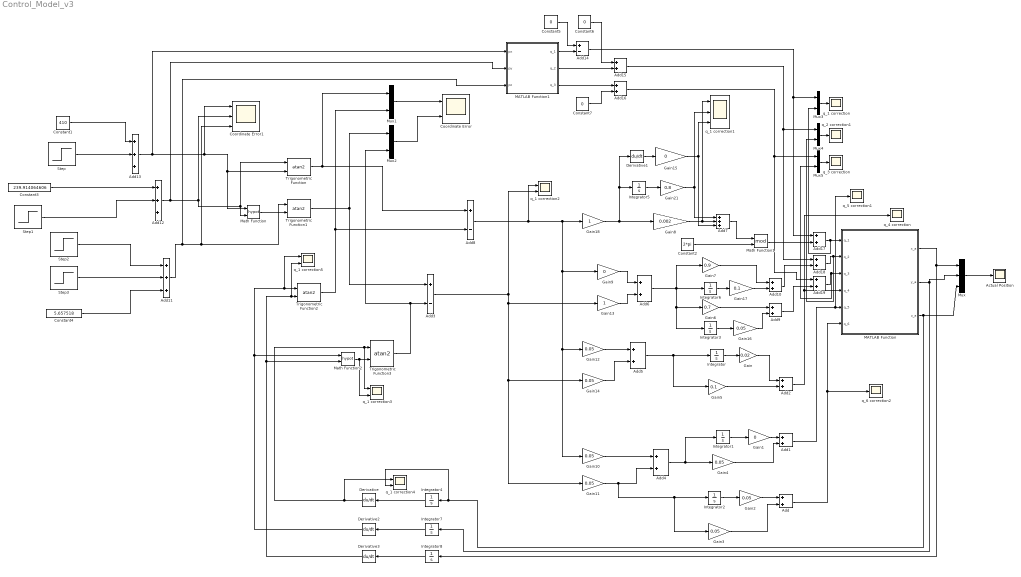
== matlab function Control_Model_v3/MATLAB Function1 ==
function [q_1, q_2, q_3] = fcn( px, py, pz)
%#codegen

D1 = 197.13;%275.5;
D2 = 410;
D3 = 207.3;
D4 = 74.1;
D5 = 74.1;
D6 = 160.0;
e2 = 9.8;
d1 = 197.13;
d2 = D2;
d3 = D3;

% q_3 +
%q_3__ = 1 * acos( (px^2 + (pz-d1)^2 - d2^2 - d3^2) / (2*d2*d3) );  

%cq_2 = (px*(d2+d3*cos(q_3__)) + d3*sin(q_3__)*(pz -d1)) / (d2^2 + d3^2 + 2*d2*d3*cos(q_3__));
%sq_2 = (-px*d3*sin(q_3__) + (d2+d3*cos(q_3__))*(pz -d1)) / (d2^2 + d3^2 + 2*d2*d3*cos(q_3__));
%q_2__ = (pi/2) - atan2(sq_2,cq_2);
%q_3__*180/pi
%q_2__*180/pi
% q_3 -

q_3 = 1 * acos( (px^2 + (pz-d1)^2 - d2^2 - d3^2) / (2*d2*d3) );  

cq_2 = (px*(d2+d3*cos(q_3)) + d3*sin(q_3)*(pz -d1)) / (d2^2 + d3^2 + 2*d2*d3*cos(q_3));
sq_2 = (-px*d3*sin(q_3) + (d2+d3*cos(q_3))*(pz -d1)) / (d2^2 + d3^2 + 2*d2*d3*cos(q_3));
q_2 = (pi/2) - atan2(sq_2,cq_2);

% q_1 offset
q_1 = atan2((py), px) - asin(e2 / ((px^2 + py^2)^.5));

== matlab function Control_Model_v3/MATLAB Function ==
function [x_a, y_a, z_a] = fcn(q_1, q_2, q_3, q_4, q_5, q_6)
%#codegen

q1 = q_1;%pi-(q_1);
q2 = q_2;%-pi/2 + (q_2+pi);
q3 = q_3;%pi/2 + (pi+q_3);
q4 = q_4;%q_4;
q5 = q_5;%-pi + q_5;
q6 = q_6;%pi + q_6;

%A_new = vpa(subs(A, [q1,q2,q3,q4,q5,q6], [ pi-(q_1), -pi/2 + (q_2+pi), pi/2 + (pi+q_3), q_4, -pi + q_5, pi]));


x_a = 9.8*sin(q1) + 410.0*cos(q1)*cos(q2) - 161.90703230275506147226218323136*cos(q4)*sin(q1) + 175.614064605510166451876962007*sin(q5)*(1.0*sin(q1)*sin(q4) - cos(q4)*(cos(q1)*cos(q2)*cos(q3) + cos(q1)*sin(q2)*sin(q3))) - 161.90703230275506147226218323136*sin(q4)*(cos(q1)*cos(q2)*cos(q3) + cos(q1)*sin(q2)*sin(q3)) - 175.614064605510166451876962007*cos(q5)*(0.5*cos(q4)*sin(q1) + 0.5*sin(q4)*(cos(q1)*cos(q2)*cos(q3) + cos(q1)*sin(q2)*sin(q3)) - 0.86602540378443864676372317075294*cos(q1)*cos(q2)*sin(q3) + 0.86602540378443864676372317075294*cos(q1)*cos(q3)*sin(q2)) - 343.55872363064032981583295622841*cos(q1)*cos(q2)*sin(q3) + 343.55872363064032981583295622841*cos(q1)*cos(q3)*sin(q2); 
y_a = 161.90703230275506147226218323136*cos(q1)*cos(q4) - 9.8*cos(q1) + 410.0*cos(q2)*sin(q1) + 175.614064605510166451876962007*cos(q5)*(0.5*cos(q1)*cos(q4) - 0.5*sin(q4)*(sin(q1)*sin(q2)*sin(q3) + cos(q2)*cos(q3)*sin(q1)) + 0.86602540378443864676372317075294*cos(q2)*sin(q1)*sin(q3) - 0.86602540378443864676372317075294*cos(q3)*sin(q1)*sin(q2)) - 175.614064605510166451876962007*sin(q5)*(1.0*cos(q1)*sin(q4) + cos(q4)*(sin(q1)*sin(q2)*sin(q3) + cos(q2)*cos(q3)*sin(q1))) - 161.90703230275506147226218323136*sin(q4)*(sin(q1)*sin(q2)*sin(q3) + cos(q2)*cos(q3)*sin(q1)) - 343.55872363064032981583295622841*cos(q2)*sin(q1)*sin(q3) + 343.55872363064032981583295622841*cos(q3)*sin(q1)*sin(q2);
z_a = 410.0*sin(q2) - 343.55872363064032981583295622841*cos(q2)*cos(q3) - 343.55872363064032981583295622841*sin(q2)*sin(q3) + 175.614064605510166451876962007*cos(q5)*(0.86602540378443864676372317075294*cos(q2)*cos(q3) + 0.86602540378443864676372317075294*sin(q2)*sin(q3) + 0.5*sin(q4)*(1.0*cos(q2)*sin(q3) - 1.0*cos(q3)*sin(q2))) + 161.90703230275506147226218323136*sin(q4)*(1.0*cos(q2)*sin(q3) - 1.0*cos(q3)*sin(q2)) + 175.614064605510166451876962007*cos(q4)*sin(q5)*(1.0*cos(q2)*sin(q3) - 1.0*cos(q3)*sin(q2)) + 197.13;




%y = u;

/*
 * Control_Model_v3.c
 *
 * Academic License - for use in teaching, academic research, and meeting
 * course requirements at degree granting institutions only.  Not for
 * government, commercial, or other organizational use.
 *
 * Code generation for model "Control_Model_v3".
 *
 * Model version              : 1.16
 * Simulink Coder version : 8.8 (R2015a) 09-Feb-2015
 * C source code generated on : Mon Jun 04 21:06:25 2018
 *
 * Target selection: rsim.tlc
 * Note: GRT includes extra infrastructure and instrumentation for prototyping
 * Embedded hardware selection: 32-bit Generic
 * Emulation hardware selection:
 *    Differs from embedded hardware (MATLAB Host)
 * Code generation objectives: Unspecified
 * Validation result: Not run
 */

#include <math.h>
#include "Control_Model_v3.h"
#include "Control_Model_v3_private.h"
#include "Control_Model_v3_dt.h"

/* user code (top of parameter file) */
const int_T gblNumToFiles = 0;
const int_T gblNumFrFiles = 0;
const int_T gblNumFrWksBlocks = 0;
const char *gblSlvrJacPatternFileName =
  "Control_Model_v3_rsim_rtw\\Control_Model_v3_Jpattern.mat";

/* Root inports information  */
const int_T gblNumRootInportBlks = 0;
const int_T gblNumModelInputs = 0;
extern rtInportTUtable *gblInportTUtables;
extern const char *gblInportFileName;
const int_T gblInportDataTypeIdx[] = { -1 };

const int_T gblInportDims[] = { -1 } ;

const int_T gblInportComplex[] = { -1 };

const int_T gblInportInterpoFlag[] = { -1 };

const int_T gblInportContinuous[] = { -1 };

#include "simstruc.h"
#include "fixedpoint.h"

/* Block signals (auto storage) */
B rtB;

/* Continuous states */
X rtX;

/* Block states (auto storage) */
DW rtDW;

/* Parent Simstruct */
static SimStruct model_S;
SimStruct *const rtS = &model_S;
real_T rt_atan2d_snf(real_T u0, real_T u1)
{
  real_T y;
  int32_T u0_0;
  int32_T u1_0;
  if (rtIsNaN(u0) || rtIsNaN(u1)) {
    y = (rtNaN);
  } else if (rtIsInf(u0) && rtIsInf(u1)) {
    if (u0 > 0.0) {
      u0_0 = 1;
    } else {
      u0_0 = -1;
    }

    if (u1 > 0.0) {
      u1_0 = 1;
    } else {
      u1_0 = -1;
    }

    y = atan2(u0_0, u1_0);
  } else if (u1 == 0.0) {
    if (u0 > 0.0) {
      y = RT_PI / 2.0;
    } else if (u0 < 0.0) {
      y = -(RT_PI / 2.0);
    } else {
      y = 0.0;
    }
  } else {
    y = atan2(u0, u1);
  }

  return y;
}

real_T rt_roundd_snf(real_T u)
{
  real_T y;
  if (fabs(u) < 4.503599627370496E+15) {
    if (u >= 0.5) {
      y = floor(u + 0.5);
    } else if (u > -0.5) {
      y = u * 0.0;
    } else {
      y = ceil(u - 0.5);
    }
  } else {
    y = u;
  }

  return y;
}

real_T rt_modd_snf(real_T u0, real_T u1)
{
  real_T y;
  real_T tmp;
  if (u1 == 0.0) {
    y = u0;
  } else if (!((!rtIsNaN(u0)) && (!rtIsInf(u0)) && ((!rtIsNaN(u1)) && (!rtIsInf
                (u1))))) {
    y = (rtNaN);
  } else {
    tmp = u0 / u1;
    if (u1 <= floor(u1)) {
      y = u0 - floor(tmp) * u1;
    } else if (fabs(tmp - rt_roundd_snf(tmp)) <= DBL_EPSILON * fabs(tmp)) {
      y = 0.0;
    } else {
      y = (tmp - floor(tmp)) * u1;
    }
  }

  return y;
}

real_T rt_hypotd_snf(real_T u0, real_T u1)
{
  real_T y;
  real_T a;
  a = fabs(u0);
  y = fabs(u1);
  if (a < y) {
    a /= y;
    y *= sqrt(a * a + 1.0);
  } else if (a > y) {
    y /= a;
    y = sqrt(y * y + 1.0) * a;
  } else {
    if (!rtIsNaN(y)) {
      y = a * 1.4142135623730951;
    }
  }

  return y;
}

/* Initial conditions for root system: '<Root>' */
void MdlInitialize(void)
{
  /* InitializeConditions for Integrator: '<Root>/Integrator5' */
  rtX.Integrator5_CSTATE = rtP.Integrator5_IC;

  /* InitializeConditions for Integrator: '<Root>/Integrator7' */
  rtX.Integrator7_CSTATE = rtP.Integrator7_IC;

  /* InitializeConditions for Derivative: '<Root>/Derivative2' */
  rtDW.TimeStampA = (rtInf);
  rtDW.TimeStampB = (rtInf);

  /* InitializeConditions for Integrator: '<Root>/Integrator8' */
  rtX.Integrator8_CSTATE = rtP.Integrator8_IC;

  /* InitializeConditions for Derivative: '<Root>/Derivative3' */
  rtDW.TimeStampA_b = (rtInf);
  rtDW.TimeStampB_d = (rtInf);

  /* InitializeConditions for Derivative: '<Root>/Derivative1' */
  rtDW.TimeStampA_a = (rtInf);
  rtDW.TimeStampB_dw = (rtInf);

  /* InitializeConditions for Integrator: '<Root>/Integrator4' */
  rtX.Integrator4_CSTATE = rtP.Integrator4_IC;

  /* InitializeConditions for Derivative: '<Root>/Derivative' */
  rtDW.TimeStampA_f = (rtInf);
  rtDW.TimeStampB_dj = (rtInf);

  /* InitializeConditions for Integrator: '<Root>/Integrator6' */
  rtX.Integrator6_CSTATE = rtP.Integrator6_IC;

  /* InitializeConditions for Integrator: '<Root>/Integrator3' */
  rtX.Integrator3_CSTATE = rtP.Integrator3_IC;

  /* InitializeConditions for Integrator: '<Root>/Integrator' */
  rtX.Integrator_CSTATE = rtP.Integrator_IC;

  /* InitializeConditions for Integrator: '<Root>/Integrator1' */
  rtX.Integrator1_CSTATE = rtP.Integrator1_IC;

  /* InitializeConditions for Integrator: '<Root>/Integrator2' */
  rtX.Integrator2_CSTATE = rtP.Integrator2_IC;
}

/* Start for root system: '<Root>' */
void MdlStart(void)
{
  MdlInitialize();
}

/* Outputs for root system: '<Root>' */
void MdlOutputs(int_T tid)
{
  real_T currentTime;
  real_T *lastU;
  real_T rtb_Integrator2;

  /* Step: '<Root>/Step' */
  if (ssGetTaskTime(rtS,0) < rtP.Step_Time) {
    rtb_Integrator2 = rtP.Step_Y0;
  } else {
    rtb_Integrator2 = rtP.Step_YFinal;
  }

  /* End of Step: '<Root>/Step' */

  /* Sum: '<Root>/Add13' incorporates:
   *  Constant: '<Root>/Constant1'
   */
  rtB.Add13 = rtP.Constant1_Value + rtb_Integrator2;

  /* Step: '<Root>/Step1' */
  if (ssGetTaskTime(rtS,0) < rtP.Step1_Time) {
    rtb_Integrator2 = rtP.Step1_Y0;
  } else {
    rtb_Integrator2 = rtP.Step1_YFinal;
  }

  /* End of Step: '<Root>/Step1' */

  /* Sum: '<Root>/Add12' incorporates:
   *  Constant: '<Root>/Constant3'
   */
  rtB.Add12 = rtP.Constant3_Value + rtb_Integrator2;

  /* Step: '<Root>/Step3' */
  currentTime = ssGetTaskTime(rtS,0);

  /* Step: '<Root>/Step2' */
  if (ssGetTaskTime(rtS,0) < rtP.Step2_Time) {
    rtb_Integrator2 = rtP.Step2_Y0;
  } else {
    rtb_Integrator2 = rtP.Step2_YFinal;
  }

  /* End of Step: '<Root>/Step2' */

  /* Step: '<Root>/Step3' */
  if (currentTime < rtP.Step3_Time) {
    currentTime = rtP.Step3_Y0;
  } else {
    currentTime = rtP.Step3_YFinal;
  }

  /* Sum: '<Root>/Add11' incorporates:
   *  Constant: '<Root>/Constant4'
   */
  rtB.Add11 = (rtb_Integrator2 + currentTime) + rtP.Constant4_Value;

  /* MATLAB Function: '<Root>/MATLAB Function1' */
  /* MATLAB Function 'MATLAB Function1': '<S2>:1' */
  /* 275.5; */
  /* '<S2>:1:11' */
  /* '<S2>:1:12' */
  /*  q_3 + */
  /* q_3__ = 1 * acos( (px^2 + (pz-d1)^2 - d2^2 - d3^2) / (2*d2*d3) );   */
  /* cq_2 = (px*(d2+d3*cos(q_3__)) + d3*sin(q_3__)*(pz -d1)) / (d2^2 + d3^2 + 2*d2*d3*cos(q_3__)); */
  /* sq_2 = (-px*d3*sin(q_3__) + (d2+d3*cos(q_3__))*(pz -d1)) / (d2^2 + d3^2 + 2*d2*d3*cos(q_3__)); */
  /* q_2__ = (pi/2) - atan2(sq_2,cq_2); */
  /* q_3__*180/pi */
  /* q_2__*180/pi */
  /*  q_3 - */
  /* '<S2>:1:25' */
  currentTime = acos(((((rtB.Add11 - 197.13) * (rtB.Add11 - 197.13) + rtB.Add13 *
                        rtB.Add13) - 168100.0) - 42973.290000000008) / 169986.0);

  /* Sum: '<Root>/Add14' incorporates:
   *  Constant: '<Root>/Constant5'
   *  MATLAB Function: '<Root>/MATLAB Function1'
   */
  /* '<S2>:1:27' */
  /* '<S2>:1:28' */
  /* '<S2>:1:29' */
  /*  q_1 offset */
  /* '<S2>:1:32' */
  rtB.Add14 = rtP.Constant5_Value - (rt_atan2d_snf(rtB.Add12, rtB.Add13) - asin
    (9.8 / sqrt(rtB.Add13 * rtB.Add13 + rtB.Add12 * rtB.Add12)));

  /* Gain: '<Root>/Gain21' incorporates:
   *  Integrator: '<Root>/Integrator5'
   */
  rtB.Gain21 = rtP.Gain21_Gain * rtX.Integrator5_CSTATE;

  /* Trigonometry: '<Root>/Trigonometric Function' */
  rtB.TrigonometricFunction = rt_atan2d_snf(rtB.Add12, rtB.Add13);

  /* Integrator: '<Root>/Integrator7' */
  rtB.Integrator7 = rtX.Integrator7_CSTATE;

  /* Derivative: '<Root>/Derivative2' */
  if ((rtDW.TimeStampA >= ssGetT(rtS)) && (rtDW.TimeStampB >= ssGetT(rtS))) {
    rtB.Derivative2 = 0.0;
  } else {
    rtb_Integrator2 = rtDW.TimeStampA;
    lastU = &rtDW.LastUAtTimeA;
    if (rtDW.TimeStampA < rtDW.TimeStampB) {
      if (rtDW.TimeStampB < ssGetT(rtS)) {
        rtb_Integrator2 = rtDW.TimeStampB;
        lastU = &rtDW.LastUAtTimeB;
      }
    } else {
      if (rtDW.TimeStampA >= ssGetT(rtS)) {
        rtb_Integrator2 = rtDW.TimeStampB;
        lastU = &rtDW.LastUAtTimeB;
      }
    }

    rtB.Derivative2 = (rtB.Integrator7 - *lastU) / (ssGetT(rtS) -
      rtb_Integrator2);
  }

  /* End of Derivative: '<Root>/Derivative2' */

  /* Integrator: '<Root>/Integrator8' */
  rtB.Integrator8 = rtX.Integrator8_CSTATE;

  /* Derivative: '<Root>/Derivative3' */
  if ((rtDW.TimeStampA_b >= ssGetT(rtS)) && (rtDW.TimeStampB_d >= ssGetT(rtS)))
  {
    rtB.Derivative3 = 0.0;
  } else {
    rtb_Integrator2 = rtDW.TimeStampA_b;
    lastU = &rtDW.LastUAtTimeA_k;
    if (rtDW.TimeStampA_b < rtDW.TimeStampB_d) {
      if (rtDW.TimeStampB_d < ssGetT(rtS)) {
        rtb_Integrator2 = rtDW.TimeStampB_d;
        lastU = &rtDW.LastUAtTimeB_n;
      }
    } else {
      if (rtDW.TimeStampA_b >= ssGetT(rtS)) {
        rtb_Integrator2 = rtDW.TimeStampB_d;
        lastU = &rtDW.LastUAtTimeB_n;
      }
    }

    rtB.Derivative3 = (rtB.Integrator8 - *lastU) / (ssGetT(rtS) -
      rtb_Integrator2);
  }

  /* End of Derivative: '<Root>/Derivative3' */

  /* Trigonometry: '<Root>/Trigonometric Function2' */
  rtB.TrigonometricFunction2 = rt_atan2d_snf(rtB.Derivative2, rtB.Derivative3);

  /* Sum: '<Root>/Add8' */
  rtB.Add8 = rtB.TrigonometricFunction - rtB.TrigonometricFunction2;

  /* Gain: '<Root>/Gain18' */
  rtB.Gain18 = rtP.Gain18_Gain * rtB.Add8;

  /* Gain: '<Root>/Gain8' */
  rtB.Gain8 = rtP.Gain8_Gain * rtB.Gain18;

  /* Derivative: '<Root>/Derivative1' */
  if ((rtDW.TimeStampA_a >= ssGetT(rtS)) && (rtDW.TimeStampB_dw >= ssGetT(rtS)))
  {
    rtb_Integrator2 = 0.0;
  } else {
    rtb_Integrator2 = rtDW.TimeStampA_a;
    lastU = &rtDW.LastUAtTimeA_i;
    if (rtDW.TimeStampA_a < rtDW.TimeStampB_dw) {
      if (rtDW.TimeStampB_dw < ssGetT(rtS)) {
        rtb_Integrator2 = rtDW.TimeStampB_dw;
        lastU = &rtDW.LastUAtTimeB_g;
      }
    } else {
      if (rtDW.TimeStampA_a >= ssGetT(rtS)) {
        rtb_Integrator2 = rtDW.TimeStampB_dw;
        lastU = &rtDW.LastUAtTimeB_g;
      }
    }

    rtb_Integrator2 = (rtB.Gain18 - *lastU) / (ssGetT(rtS) - rtb_Integrator2);
  }

  /* End of Derivative: '<Root>/Derivative1' */

  /* Gain: '<Root>/Gain15' */
  rtB.Gain15 = rtP.Gain15_Gain * rtb_Integrator2;

  /* Sum: '<Root>/Add17' incorporates:
   *  Constant: '<Root>/Constant2'
   *  Math: '<Root>/Math Function1'
   *  Sum: '<Root>/Add7'
   */
  rtB.Add17 = rt_modd_snf((rtB.Gain21 + rtB.Gain8) + rtB.Gain15,
    rtP.Constant2_Value) + rtB.Add14;

  /* Sum: '<Root>/Add15' incorporates:
   *  Constant: '<Root>/Constant6'
   *  MATLAB Function: '<Root>/MATLAB Function1'
   */
  rtB.Add15 = (1.5707963267948966 - rt_atan2d_snf(((207.3 * cos(currentTime) +
    410.0) * (rtB.Add11 - 197.13) + -rtB.Add13 * 207.3 * sin(currentTime)) /
    (169986.0 * cos(currentTime) + 211073.29), ((207.3 * cos(currentTime) +
    410.0) * rtB.Add13 + 207.3 * sin(currentTime) * (rtB.Add11 - 197.13)) /
    (169986.0 * cos(currentTime) + 211073.29))) + rtP.Constant6_Value;

  /* Trigonometry: '<Root>/Trigonometric Function1' incorporates:
   *  Math: '<Root>/Math Function'
   */
  rtB.TrigonometricFunction1 = rt_atan2d_snf(rtB.Add11, rt_hypotd_snf(rtB.Add13,
    rtB.Add12));

  /* Integrator: '<Root>/Integrator4' */
  rtB.Integrator4 = rtX.Integrator4_CSTATE;

  /* Derivative: '<Root>/Derivative' */
  if ((rtDW.TimeStampA_f >= ssGetT(rtS)) && (rtDW.TimeStampB_dj >= ssGetT(rtS)))
  {
    rtB.Derivative = 0.0;
  } else {
    rtb_Integrator2 = rtDW.TimeStampA_f;
    lastU = &rtDW.LastUAtTimeA_l;
    if (rtDW.TimeStampA_f < rtDW.TimeStampB_dj) {
      if (rtDW.TimeStampB_dj < ssGetT(rtS)) {
        rtb_Integrator2 = rtDW.TimeStampB_dj;
        lastU = &rtDW.LastUAtTimeB_l;
      }
    } else {
      if (rtDW.TimeStampA_f >= ssGetT(rtS)) {
        rtb_Integrator2 = rtDW.TimeStampB_dj;
        lastU = &rtDW.LastUAtTimeB_l;
      }
    }

    rtB.Derivative = (rtB.Integrator4 - *lastU) / (ssGetT(rtS) - rtb_Integrator2);
  }

  /* End of Derivative: '<Root>/Derivative' */

  /* Math: '<Root>/Math Function2' */
  rtB.MathFunction2 = rt_hypotd_snf(rtB.Derivative2, rtB.Derivative3);

  /* Trigonometry: '<Root>/Trigonometric Function3' */
  rtB.TrigonometricFunction3 = rt_atan2d_snf(rtB.Derivative, rtB.MathFunction2);

  /* Sum: '<Root>/Add3' */
  rtB.Add3 = rtB.TrigonometricFunction1 - rtB.TrigonometricFunction3;

  /* Sum: '<Root>/Add6' incorporates:
   *  Gain: '<Root>/Gain13'
   *  Gain: '<Root>/Gain9'
   */
  rtB.Add6 = rtP.Gain9_Gain * rtB.Add8 + rtP.Gain13_Gain * rtB.Add3;

  /* Sum: '<Root>/Add18' incorporates:
   *  Gain: '<Root>/Gain17'
   *  Gain: '<Root>/Gain7'
   *  Integrator: '<Root>/Integrator6'
   *  Sum: '<Root>/Add10'
   */
  rtB.Add18 = (rtP.Gain7_Gain * rtB.Add6 + rtP.Gain17_Gain *
               rtX.Integrator6_CSTATE) + rtB.Add15;

  /* Sum: '<Root>/Add16' incorporates:
   *  Constant: '<Root>/Constant7'
   *  MATLAB Function: '<Root>/MATLAB Function1'
   */
  rtB.Add16 = currentTime + rtP.Constant7_Value;

  /* Sum: '<Root>/Add19' incorporates:
   *  Gain: '<Root>/Gain16'
   *  Gain: '<Root>/Gain6'
   *  Integrator: '<Root>/Integrator3'
   *  Sum: '<Root>/Add9'
   */
  rtB.Add19 = (rtP.Gain6_Gain * rtB.Add6 + rtP.Gain16_Gain *
               rtX.Integrator3_CSTATE) + rtB.Add16;

  /* Sum: '<Root>/Add5' incorporates:
   *  Gain: '<Root>/Gain12'
   *  Gain: '<Root>/Gain14'
   */
  rtB.Add5 = rtP.Gain12_Gain * rtB.Add8 + rtP.Gain14_Gain * rtB.Add3;

  /* Sum: '<Root>/Add2' incorporates:
   *  Gain: '<Root>/Gain'
   *  Gain: '<Root>/Gain5'
   *  Integrator: '<Root>/Integrator'
   */
  rtB.Add2 = rtP.Gain_Gain * rtX.Integrator_CSTATE + rtP.Gain5_Gain * rtB.Add5;

  /* Gain: '<Root>/Gain11' */
  rtB.Gain11 = rtP.Gain11_Gain * rtB.Add3;

  /* Sum: '<Root>/Add4' incorporates:
   *  Gain: '<Root>/Gain10'
   */
  rtB.Add4 = rtP.Gain10_Gain * rtB.Add8 + rtB.Gain11;

  /* Sum: '<Root>/Add1' incorporates:
   *  Gain: '<Root>/Gain1'
   *  Gain: '<Root>/Gain4'
   *  Integrator: '<Root>/Integrator1'
   */
  rtB.Add1 = rtP.Gain1_Gain * rtX.Integrator1_CSTATE + rtP.Gain4_Gain * rtB.Add4;

  /* Sum: '<Root>/Add' incorporates:
   *  Gain: '<Root>/Gain2'
   *  Gain: '<Root>/Gain3'
   *  Integrator: '<Root>/Integrator2'
   */
  rtB.Add = rtP.Gain2_Gain * rtX.Integrator2_CSTATE + rtP.Gain3_Gain *
    rtB.Gain11;

  /* MATLAB Function: '<Root>/MATLAB Function' */
  /* MATLAB Function 'MATLAB Function': '<S1>:1' */
  /* pi-(q_1); */
  /* -pi/2 + (q_2+pi); */
  /* pi/2 + (pi+q_3); */
  /* q_4; */
  /* -pi + q_5; */
  /* pi + q_6; */
  /* A_new = vpa(subs(A, [q1,q2,q3,q4,q5,q6], [ pi-(q_1), -pi/2 + (q_2+pi), pi/2 + (pi+q_3), q_4, -pi + q_5, pi])); */
  /* '<S1>:1:14' */
  rtB.x_a = (((((sin(rtB.Add17) * sin(rtB.Add2) - (cos(rtB.Add17) * cos
    (rtB.Add18) * cos(rtB.Add19) + cos(rtB.Add17) * sin(rtB.Add18) * sin
    (rtB.Add19)) * cos(rtB.Add2)) * (175.61406460551018 * sin(rtB.Add1)) +
                ((410.0 * cos(rtB.Add17) * cos(rtB.Add18) + 9.8 * sin(rtB.Add17))
                 - 161.90703230275506 * cos(rtB.Add2) * sin(rtB.Add17))) - (cos
    (rtB.Add17) * cos(rtB.Add18) * cos(rtB.Add19) + cos(rtB.Add17) * sin
    (rtB.Add18) * sin(rtB.Add19)) * (161.90703230275506 * sin(rtB.Add2))) -
              ((((cos(rtB.Add17) * cos(rtB.Add18) * cos(rtB.Add19) + cos
                  (rtB.Add17) * sin(rtB.Add18) * sin(rtB.Add19)) * (0.5 * sin
    (rtB.Add2)) + 0.5 * cos(rtB.Add2) * sin(rtB.Add17)) - 0.8660254037844386 *
                cos(rtB.Add17) * cos(rtB.Add18) * sin(rtB.Add19)) +
               0.8660254037844386 * cos(rtB.Add17) * cos(rtB.Add19) * sin
               (rtB.Add18)) * (175.61406460551018 * cos(rtB.Add1))) -
             343.55872363064032 * cos(rtB.Add17) * cos(rtB.Add18) * sin
             (rtB.Add19)) + 343.55872363064032 * cos(rtB.Add17) * cos(rtB.Add19)
    * sin(rtB.Add18);

  /* '<S1>:1:15' */
  rtB.y_a = (((((((0.5 * cos(rtB.Add17) * cos(rtB.Add2) - (sin(rtB.Add17) * sin
    (rtB.Add18) * sin(rtB.Add19) + cos(rtB.Add18) * cos(rtB.Add19) * sin
    (rtB.Add17)) * (0.5 * sin(rtB.Add2))) + 0.8660254037844386 * cos(rtB.Add18) *
                  sin(rtB.Add17) * sin(rtB.Add19)) - 0.8660254037844386 * cos
                 (rtB.Add19) * sin(rtB.Add17) * sin(rtB.Add18)) *
                (175.61406460551018 * cos(rtB.Add1)) + ((161.90703230275506 *
    cos(rtB.Add17) * cos(rtB.Add2) - 9.8 * cos(rtB.Add17)) + 410.0 * cos
    (rtB.Add18) * sin(rtB.Add17))) - ((sin(rtB.Add17) * sin(rtB.Add18) * sin
    (rtB.Add19) + cos(rtB.Add18) * cos(rtB.Add19) * sin(rtB.Add17)) * cos
    (rtB.Add2) + cos(rtB.Add17) * sin(rtB.Add2)) * (175.61406460551018 * sin
    (rtB.Add1))) - (sin(rtB.Add17) * sin(rtB.Add18) * sin(rtB.Add19) + cos
                    (rtB.Add18) * cos(rtB.Add19) * sin(rtB.Add17)) *
              (161.90703230275506 * sin(rtB.Add2))) - 343.55872363064032 * cos
             (rtB.Add18) * sin(rtB.Add17) * sin(rtB.Add19)) + 343.55872363064032
    * cos(rtB.Add19) * sin(rtB.Add17) * sin(rtB.Add18);

  /* '<S1>:1:16' */
  rtB.z_a = (((((0.8660254037844386 * cos(rtB.Add18) * cos(rtB.Add19) +
                 0.8660254037844386 * sin(rtB.Add18) * sin(rtB.Add19)) + (cos
    (rtB.Add18) * sin(rtB.Add19) - cos(rtB.Add19) * sin(rtB.Add18)) * (0.5 * sin
    (rtB.Add2))) * (175.61406460551018 * cos(rtB.Add1)) + ((410.0 * sin
    (rtB.Add18) - 343.55872363064032 * cos(rtB.Add18) * cos(rtB.Add19)) -
    343.55872363064032 * sin(rtB.Add18) * sin(rtB.Add19))) + (cos(rtB.Add18) *
    sin(rtB.Add19) - cos(rtB.Add19) * sin(rtB.Add18)) * (161.90703230275506 *
    sin(rtB.Add2))) + 175.61406460551018 * cos(rtB.Add2) * sin(rtB.Add1) * (cos
              (rtB.Add18) * sin(rtB.Add19) - cos(rtB.Add19) * sin(rtB.Add18))) +
    197.13;

  /* y = u; */
  if (ssIsSampleHit(rtS, 1, 0)) {
  }

  UNUSED_PARAMETER(tid);
}

/* Update for root system: '<Root>' */
void MdlUpdate(int_T tid)
{
  real_T *lastU;

  /* Update for Derivative: '<Root>/Derivative2' */
  if (rtDW.TimeStampA == (rtInf)) {
    rtDW.TimeStampA = ssGetT(rtS);
    lastU = &rtDW.LastUAtTimeA;
  } else if (rtDW.TimeStampB == (rtInf)) {
    rtDW.TimeStampB = ssGetT(rtS);
    lastU = &rtDW.LastUAtTimeB;
  } else if (rtDW.TimeStampA < rtDW.TimeStampB) {
    rtDW.TimeStampA = ssGetT(rtS);
    lastU = &rtDW.LastUAtTimeA;
  } else {
    rtDW.TimeStampB = ssGetT(rtS);
    lastU = &rtDW.LastUAtTimeB;
  }

  *lastU = rtB.Integrator7;

  /* End of Update for Derivative: '<Root>/Derivative2' */

  /* Update for Derivative: '<Root>/Derivative3' */
  if (rtDW.TimeStampA_b == (rtInf)) {
    rtDW.TimeStampA_b = ssGetT(rtS);
    lastU = &rtDW.LastUAtTimeA_k;
  } else if (rtDW.TimeStampB_d == (rtInf)) {
    rtDW.TimeStampB_d = ssGetT(rtS);
    lastU = &rtDW.LastUAtTimeB_n;
  } else if (rtDW.TimeStampA_b < rtDW.TimeStampB_d) {
    rtDW.TimeStampA_b = ssGetT(rtS);
    lastU = &rtDW.LastUAtTimeA_k;
  } else {
    rtDW.TimeStampB_d = ssGetT(rtS);
    lastU = &rtDW.LastUAtTimeB_n;
  }

  *lastU = rtB.Integrator8;

  /* End of Update for Derivative: '<Root>/Derivative3' */

  /* Update for Derivative: '<Root>/Derivative1' */
  if (rtDW.TimeStampA_a == (rtInf)) {
    rtDW.TimeStampA_a = ssGetT(rtS);
    lastU = &rtDW.LastUAtTimeA_i;
  } else if (rtDW.TimeStampB_dw == (rtInf)) {
    rtDW.TimeStampB_dw = ssGetT(rtS);
    lastU = &rtDW.LastUAtTimeB_g;
  } else if (rtDW.TimeStampA_a < rtDW.TimeStampB_dw) {
    rtDW.TimeStampA_a = ssGetT(rtS);
    lastU = &rtDW.LastUAtTimeA_i;
  } else {
    rtDW.TimeStampB_dw = ssGetT(rtS);
    lastU = &rtDW.LastUAtTimeB_g;
  }

  *lastU = rtB.Gain18;

  /* End of Update for Derivative: '<Root>/Derivative1' */

  /* Update for Derivative: '<Root>/Derivative' */
  if (rtDW.TimeStampA_f == (rtInf)) {
    rtDW.TimeStampA_f = ssGetT(rtS);
    lastU = &rtDW.LastUAtTimeA_l;
  } else if (rtDW.TimeStampB_dj == (rtInf)) {
    rtDW.TimeStampB_dj = ssGetT(rtS);
    lastU = &rtDW.LastUAtTimeB_l;
  } else if (rtDW.TimeStampA_f < rtDW.TimeStampB_dj) {
    rtDW.TimeStampA_f = ssGetT(rtS);
    lastU = &rtDW.LastUAtTimeA_l;
  } else {
    rtDW.TimeStampB_dj = ssGetT(rtS);
    lastU = &rtDW.LastUAtTimeB_l;
  }

  *lastU = rtB.Integrator4;

  /* End of Update for Derivative: '<Root>/Derivative' */
  UNUSED_PARAMETER(tid);
}
